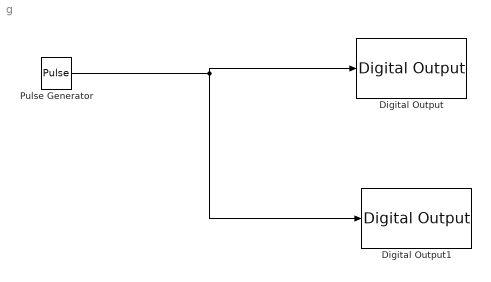
/*
 * File: g.c
 *
 * Code generated for Simulink model 'g'.
 *
 * Model version                  : 1.2
 * Simulink Coder version         : 24.1 (R2024a) 19-Nov-2023
 * C/C++ source code generated on : Fri Feb 28 18:43:58 2025
 *
 * Target selection: ert.tlc
 * Embedded hardware selection: Texas Instruments->C2000
 * Code generation objectives: Unspecified
 * Validation result: Not run
 */

#include "g.h"
#include "rtwtypes.h"
#include <string.h>

/* Block signals (default storage) */
B_g_T g_B;

/* Block states (default storage) */
DW_g_T g_DW;

/* Real-time model */
static RT_MODEL_g_T g_M_;
RT_MODEL_g_T *const g_M = &g_M_;

/* Model step function */
void g_step(void)
{
  /* DiscretePulseGenerator: '<Root>/Pulse Generator' */
  g_B.PulseGenerator = (g_DW.clockTickCounter < g_P.PulseGenerator_Duty) &&
    (g_DW.clockTickCounter >= 0L) ? g_P.PulseGenerator_Amp : 0.0;

  /* DiscretePulseGenerator: '<Root>/Pulse Generator' */
  if (g_DW.clockTickCounter >= g_P.PulseGenerator_Period - 1.0) {
    g_DW.clockTickCounter = 0L;
  } else {
    g_DW.clockTickCounter++;
  }

  /* S-Function (c280xgpio_do): '<Root>/Digital Output' */
  {
    GpioDataRegs.GPATOGGLE.bit.GPIO31 = (uint16_T)(g_B.PulseGenerator != 0);
  }

  /* S-Function (c280xgpio_do): '<Root>/Digital Output1' */
  {
    GpioDataRegs.GPBTOGGLE.bit.GPIO34 = (uint16_T)(g_B.PulseGenerator != 0);
  }
}
